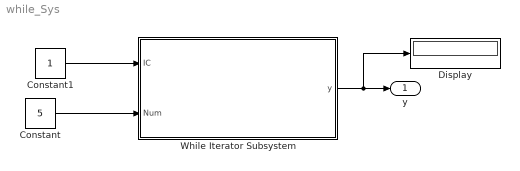
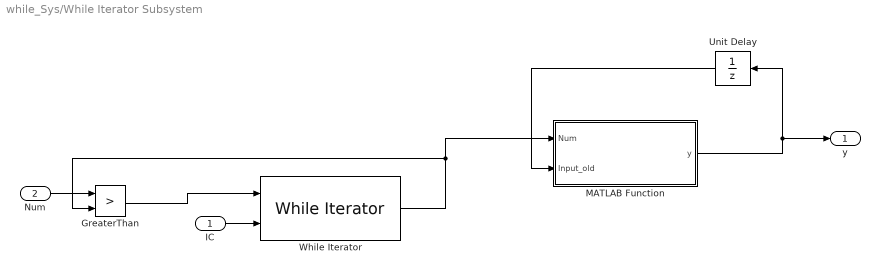
== matlab function while_Sys/While Iterator
Subsystem/MATLAB Function ==
function y = fcn(Num,Input_old)
y = Num * Input_old;

/*
 * File: while_Sys.c
 *
 * Code generated for Simulink model 'while_Sys'.
 *
 * Model version                  : 1.1
 * Simulink Coder version         : 9.5 (R2021a) 14-Nov-2020
 * C/C++ source code generated on : Sat Feb 10 00:42:45 2024
 *
 * Target selection: ert.tlc
 * Embedded hardware selection: Intel->x86-64 (Windows64)
 * Code generation objectives: Unspecified
 * Validation result: Not run
 */

#include "while_Sys.h"
#include "while_Sys_private.h"

/* Block states (default storage) */
DW_while_Sys_T while_Sys_DW;

/* External outputs (root outports fed by signals with default storage) */
ExtY_while_Sys_T while_Sys_Y;

/* Real-time model */
static RT_MODEL_while_Sys_T while_Sys_M_;
RT_MODEL_while_Sys_T *const while_Sys_M = &while_Sys_M_;

/* Model step function */
void while_Sys_step(void)
{
  int32_T s1_iter;
  boolean_T loopCond;

  /* Outputs for Iterator SubSystem: '<Root>/While Iterator Subsystem' incorporates:
   *  WhileIterator: '<S1>/While Iterator'
   */
  s1_iter = 1;

  /* Constant: '<Root>/Constant1' */
  loopCond = true;
  while (loopCond) {
    /* Outport: '<Root>/y' incorporates:
     *  MATLAB Function: '<S1>/MATLAB Function'
     *  UnitDelay: '<S1>/Unit Delay'
     */
    while_Sys_Y.y = (real_T)s1_iter * while_Sys_DW.UnitDelay_DSTATE;

    /* Update for UnitDelay: '<S1>/Unit Delay' incorporates:
     *  Outport: '<Root>/y'
     */
    while_Sys_DW.UnitDelay_DSTATE = while_Sys_Y.y;

    /* RelationalOperator: '<S1>/GreaterThan' incorporates:
     *  Constant: '<Root>/Constant'
     */
    loopCond = (5 > s1_iter);
    s1_iter++;
  }

  /* End of Outputs for SubSystem: '<Root>/While Iterator Subsystem' */
}
